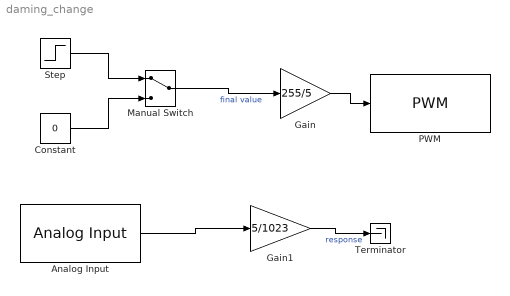
/*
 * File: daming_change.c
 *
 * Code generated for Simulink model 'daming_change'.
 *
 * Model version                  : 1.2
 * Simulink Coder version         : 9.7 (R2022a) 13-Nov-2021
 * C/C++ source code generated on : Thu Nov  9 19:24:35 2023
 *
 * Target selection: ert.tlc
 * Embedded hardware selection: Atmel->AVR
 * Code generation objectives: Unspecified
 * Validation result: Not run
 */

#include "daming_change.h"
#include "daming_change_types.h"
#include "rtwtypes.h"
#include "daming_change_private.h"

/* Block signals (default storage) */
B_daming_change_T daming_change_B;

/* Block states (default storage) */
DW_daming_change_T daming_change_DW;

/* Real-time model */
static RT_MODEL_daming_change_T daming_change_M_;
RT_MODEL_daming_change_T *const daming_change_M = &daming_change_M_;

/* Model step function */
void daming_change_step(void)
{
  MW_AnalogIn_ResultDataType_Type datatype_id;
  codertarget_arduinobase_int_o_T *obj_0;
  codertarget_arduinobase_inter_T *obj;
  real_T u0;
  uint16_T b_varargout_1;

  /* MATLABSystem: '<Root>/Analog Input' */
  if (daming_change_DW.obj.SampleTime != daming_change_P.AnalogInput_SampleTime)
  {
    daming_change_DW.obj.SampleTime = daming_change_P.AnalogInput_SampleTime;
  }

  obj = &daming_change_DW.obj;
  obj->AnalogInDriverObj.MW_ANALOGIN_HANDLE = MW_AnalogIn_GetHandle(54UL);
  datatype_id = MW_ANALOGIN_UINT16;
  MW_AnalogInSingle_ReadResult
    (daming_change_DW.obj.AnalogInDriverObj.MW_ANALOGIN_HANDLE, &b_varargout_1,
     datatype_id);

  /* Gain: '<Root>/Gain1' incorporates:
   *  MATLABSystem: '<Root>/Analog Input'
   */
  daming_change_B.response = (uint32_T)daming_change_P.Gain1_Gain *
    b_varargout_1;

  /* ManualSwitch: '<Root>/Manual Switch' */
  if (daming_change_P.ManualSwitch_CurrentSetting == 1) {
    /* Step: '<Root>/Step' */
    if (daming_change_M->Timing.t[0] < daming_change_P.Step_Time) {
      /* ManualSwitch: '<Root>/Manual Switch' */
      daming_change_B.finalvalue = daming_change_P.Step_Y0;
    } else {
      /* ManualSwitch: '<Root>/Manual Switch' */
      daming_change_B.finalvalue = daming_change_P.Step_YFinal;
    }

    /* End of Step: '<Root>/Step' */
  } else {
    /* ManualSwitch: '<Root>/Manual Switch' incorporates:
     *  Constant: '<Root>/Constant'
     */
    daming_change_B.finalvalue = daming_change_P.Constant_Value;
  }

  /* End of ManualSwitch: '<Root>/Manual Switch' */

  /* MATLABSystem: '<Root>/PWM' */
  obj_0 = &daming_change_DW.obj_j;
  obj_0->PWMDriverObj.MW_PWM_HANDLE = MW_PWM_GetHandle(11UL);

  /* Gain: '<Root>/Gain' */
  u0 = daming_change_P.Gain_Gain * daming_change_B.finalvalue;

  /* MATLABSystem: '<Root>/PWM' */
  if (!(u0 <= 255.0)) {
    u0 = 255.0;
  }

  if (!(u0 >= 0.0)) {
    u0 = 0.0;
  }

  MW_PWM_SetDutyCycle(daming_change_DW.obj_j.PWMDriverObj.MW_PWM_HANDLE, u0);

  {                                    /* Sample time: [0.0s, 0.0s] */
    extmodeErrorCode_T errorCode = EXTMODE_SUCCESS;
    extmodeSimulationTime_T currentTime = (extmodeSimulationTime_T)
      ((daming_change_M->Timing.clockTick0 * 1) + 0)
      ;

    /* Trigger External Mode event */
    errorCode = extmodeEvent(0,currentTime);
    if (errorCode != EXTMODE_SUCCESS) {
      /* Code to handle External Mode event errors
         may be added here */
    }
  }

  {                                    /* Sample time: [0.001s, 0.0s] */
    extmodeErrorCode_T errorCode = EXTMODE_SUCCESS;
    extmodeSimulationTime_T currentTime = (extmodeSimulationTime_T)
      ((daming_change_M->Timing.clockTick1 * 1) + 0)
      ;

    /* Trigger External Mode event */
    errorCode = extmodeEvent(1,currentTime);
    if (errorCode != EXTMODE_SUCCESS) {
      /* Code to handle External Mode event errors
         may be added here */
    }
  }

  /* Update absolute time for base rate */
  /* The "clockTick0" counts the number of times the code of this task has
   * been executed. The absolute time is the multiplication of "clockTick0"
   * and "Timing.stepSize0". Size of "clockTick0" ensures timer will not
   * overflow during the application lifespan selected.
   */
  daming_change_M->Timing.t[0] =
    ((time_T)(++daming_change_M->Timing.clockTick0)) *
    daming_change_M->Timing.stepSize0;

  {
    /* Update absolute timer for sample time: [0.001s, 0.0s] */
    /* The "clockTick1" counts the number of times the code of this task has
     * been executed. The resolution of this integer timer is 0.001, which is the step size
     * of the task. Size of "clockTick1" ensures timer will not overflow during the
     * application lifespan selected.
     */
    daming_change_M->Timing.clockTick1++;
  }
}
